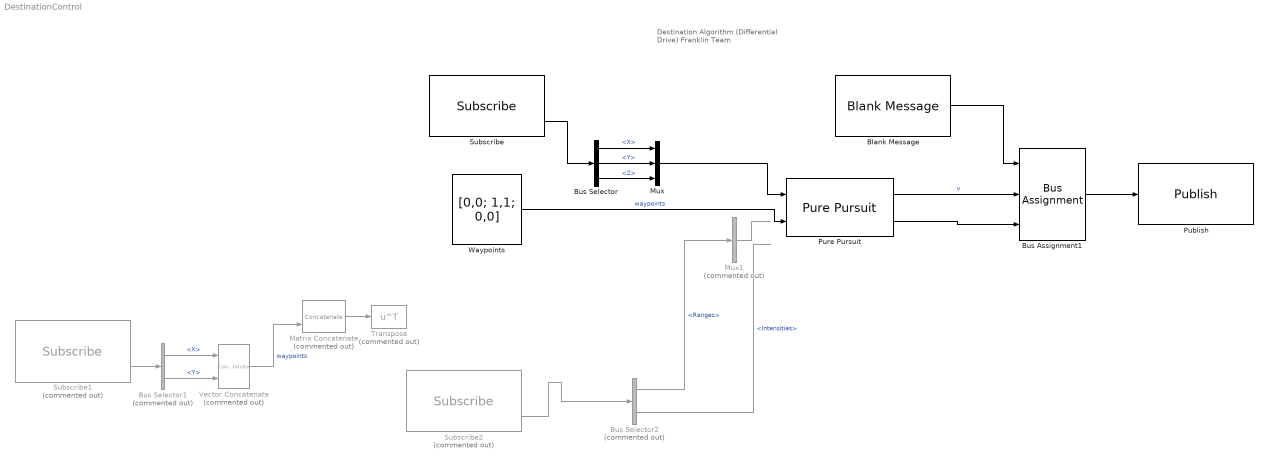
//
// Academic License - for use in teaching, academic research, and meeting
// course requirements at degree granting institutions only.  Not for
// government, commercial, or other organizational use.
//
// File: DestinationControl.cpp
//
// Code generated for Simulink model 'DestinationControl'.
//
// Model version                  : 1.4
// Simulink Coder version         : 9.3 (R2020a) 18-Nov-2019
// C/C++ source code generated on : Thu May  7 15:42:08 2020
//
// Target selection: ert.tlc
// Embedded hardware selection: Generic->Unspecified (assume 32-bit Generic)
// Code generation objectives: Unspecified
// Validation result: Not run
//
#include "DestinationControl.h"
#include "DestinationControl_private.h"

// Block signals (default storage)
B_DestinationControl_T DestinationControl_B;

// Block states (default storage)
DW_DestinationControl_T DestinationControl_DW;

// Real-time model
RT_MODEL_DestinationControl_T DestinationControl_M_ =
  RT_MODEL_DestinationControl_T();
RT_MODEL_DestinationControl_T *const DestinationControl_M =
  &DestinationControl_M_;

// Forward declaration for local functions
static real_T DestinationControl_norm(const real_T x[2]);
static void DestinationC_closestPointOnLine(const real_T pt1[2], const real_T
  pt2[2], const real_T refPt[2], real_T closestPoint[2], real_T *distance);
static void De_PurePursuitBase_stepInternal(nav_slalgs_internal_PurePursu_T *obj,
  const real_T currentPose[3], const real_T wayptsIn[6], real_T *v, real_T *w,
  real_T lookaheadPoint[2], real_T *targetDir);
static void matlabCodegenHandle_matlabCod_f(ros_slros_internal_block_Subs_T *obj);
static void matlabCodegenHandle_matlabCodeg(ros_slros_internal_block_Publ_T *obj);
static real_T DestinationControl_norm(const real_T x[2])
{
  real_T y;
  real_T scale;
  real_T absxk;
  real_T t;
  scale = 3.3121686421112381E-170;
  absxk = fabs(x[0]);
  if (absxk > 3.3121686421112381E-170) {
    y = 1.0;
    scale = absxk;
  } else {
    t = absxk / 3.3121686421112381E-170;
    y = t * t;
  }

  absxk = fabs(x[1]);
  if (absxk > scale) {
    t = scale / absxk;
    y = y * t * t + 1.0;
    scale = absxk;
  } else {
    t = absxk / scale;
    y += t * t;
  }

  return scale * sqrt(y);
}

static void DestinationC_closestPointOnLine(const real_T pt1[2], const real_T
  pt2[2], const real_T refPt[2], real_T closestPoint[2], real_T *distance)
{
  boolean_T p;
  boolean_T p_0;
  int32_T b_k;
  boolean_T exitg1;
  p = false;
  p_0 = true;
  b_k = 0;
  exitg1 = false;
  while ((!exitg1) && (b_k < 2)) {
    if (!(pt1[b_k] == pt2[b_k])) {
      p_0 = false;
      exitg1 = true;
    } else {
      b_k++;
    }
  }

  if (p_0) {
    p = true;
  }

  if (p) {
    closestPoint[0] = pt1[0];
    DestinationControl_B.refPt[0] = refPt[0] - pt1[0];
    closestPoint[1] = pt1[1];
    DestinationControl_B.refPt[1] = refPt[1] - pt1[1];
    *distance = DestinationControl_norm(DestinationControl_B.refPt);
  } else {
    DestinationControl_B.alpha = pt2[0] - pt1[0];
    DestinationControl_B.v12 = (pt2[0] - refPt[0]) * DestinationControl_B.alpha;
    DestinationControl_B.v12_k = DestinationControl_B.alpha *
      DestinationControl_B.alpha;
    DestinationControl_B.alpha = pt2[1] - pt1[1];
    DestinationControl_B.v12 += (pt2[1] - refPt[1]) * DestinationControl_B.alpha;
    DestinationControl_B.v12_k += DestinationControl_B.alpha *
      DestinationControl_B.alpha;
    DestinationControl_B.alpha = DestinationControl_B.v12 /
      DestinationControl_B.v12_k;
    p = (DestinationControl_B.alpha > 1.0);
    p_0 = (DestinationControl_B.alpha < 0.0);
    if (p) {
      DestinationControl_B.v12 = pt1[0];
    } else if (p_0) {
      DestinationControl_B.v12 = pt2[0];
    } else {
      DestinationControl_B.v12 = (1.0 - DestinationControl_B.alpha) * pt2[0] +
        DestinationControl_B.alpha * pt1[0];
    }

    DestinationControl_B.refPt[0] = refPt[0] - DestinationControl_B.v12;
    closestPoint[0] = DestinationControl_B.v12;
    if (p) {
      DestinationControl_B.v12 = pt1[1];
    } else if (p_0) {
      DestinationControl_B.v12 = pt2[1];
    } else {
      DestinationControl_B.v12 = (1.0 - DestinationControl_B.alpha) * pt2[1] +
        DestinationControl_B.alpha * pt1[1];
    }

    DestinationControl_B.refPt[1] = refPt[1] - DestinationControl_B.v12;
    closestPoint[1] = DestinationControl_B.v12;
    *distance = DestinationControl_norm(DestinationControl_B.refPt);
  }
}

real_T rt_atan2d_snf(real_T u0, real_T u1)
{
  real_T y;
  int32_T u0_0;
  int32_T u1_0;
  if (rtIsNaN(u0) || rtIsNaN(u1)) {
    y = (rtNaN);
  } else if (rtIsInf(u0) && rtIsInf(u1)) {
    if (u0 > 0.0) {
      u0_0 = 1;
    } else {
      u0_0 = -1;
    }

    if (u1 > 0.0) {
      u1_0 = 1;
    } else {
      u1_0 = -1;
    }

    y = atan2(static_cast<real_T>(u0_0), static_cast<real_T>(u1_0));
  } else if (u1 == 0.0) {
    if (u0 > 0.0) {
      y = RT_PI / 2.0;
    } else if (u0 < 0.0) {
      y = -(RT_PI / 2.0);
    } else {
      y = 0.0;
    }
  } else {
    y = atan2(u0, u1);
  }

  return y;
}

static void De_PurePursuitBase_stepInternal(nav_slalgs_internal_PurePursu_T *obj,
  const real_T currentPose[3], const real_T wayptsIn[6], real_T *v, real_T *w,
  real_T lookaheadPoint[2], real_T *targetDir)
{
  boolean_T b[6];
  int32_T trueCount;
  int32_T i;
  int32_T partialTrueCount;
  boolean_T searchFlag;
  int32_T i_tmp;
  int32_T i_tmp_0;
  boolean_T exitg1;
  for (i = 0; i < 6; i++) {
    b[i] = !rtIsNaN(wayptsIn[i]);
  }

  trueCount = 0;
  partialTrueCount = 0;
  for (i = 0; i < 3; i++) {
    if (b[i] && b[i + 3]) {
      trueCount++;
      DestinationControl_B.f_data[partialTrueCount] = i + 1;
      partialTrueCount++;
    }
  }

  for (i = 0; i < trueCount; i++) {
    DestinationControl_B.waypoints_data[i] =
      wayptsIn[DestinationControl_B.f_data[i] - 1];
    DestinationControl_B.waypoints_data[i + trueCount] =
      wayptsIn[DestinationControl_B.f_data[i] + 2];
  }

  if (trueCount == 0) {
    *v = 0.0;
    *w = 0.0;
    *targetDir = 0.0;
    lookaheadPoint[0] = currentPose[0];
    lookaheadPoint[1] = currentPose[1];
  } else {
    searchFlag = false;
    if (obj->ProjectionLineIndex == 0.0) {
      searchFlag = true;
      obj->ProjectionPoint[0] = DestinationControl_B.waypoints_data[0];
      obj->ProjectionPoint[1] = DestinationControl_B.waypoints_data[trueCount];
      obj->ProjectionLineIndex = 1.0;
    }

    if (trueCount == 1) {
      obj->ProjectionPoint[0] = DestinationControl_B.waypoints_data[0];
      obj->ProjectionPoint[1] = DestinationControl_B.waypoints_data[trueCount];
      DestinationControl_B.lookaheadStartPt[0] =
        DestinationControl_B.waypoints_data[0];
      DestinationControl_B.lookaheadStartPt[1] =
        DestinationControl_B.waypoints_data[trueCount];
    } else {
      i = static_cast<int32_T>(obj->ProjectionLineIndex + 1.0);
      DestinationControl_B.waypoints[0] = DestinationControl_B.waypoints_data[i
        - 1];
      DestinationControl_B.waypoints[1] = DestinationControl_B.waypoints_data[(i
        + trueCount) - 1];
      for (i = 0; i < 2; i++) {
        DestinationControl_B.lookaheadStartPt[i] = obj->ProjectionPoint[i];
      }

      DestinationC_closestPointOnLine(DestinationControl_B.lookaheadStartPt,
        DestinationControl_B.waypoints, &currentPose[0], obj->ProjectionPoint,
        &DestinationControl_B.minDistance);
      i = static_cast<int32_T>(obj->ProjectionLineIndex + 1.0);
      DestinationControl_B.lookaheadStartPt[0] = obj->ProjectionPoint[0] -
        DestinationControl_B.waypoints_data[i - 1];
      DestinationControl_B.lookaheadStartPt[1] = obj->ProjectionPoint[1] -
        DestinationControl_B.waypoints_data[(i + trueCount) - 1];
      DestinationControl_B.dist = DestinationControl_norm
        (DestinationControl_B.lookaheadStartPt);
      DestinationControl_B.lookaheadEndPt_idx_1 = obj->ProjectionLineIndex + 1.0;
      i = static_cast<int32_T>((1.0 - (obj->ProjectionLineIndex + 1.0)) + (
        static_cast<real_T>(trueCount) - 1.0)) - 1;
      partialTrueCount = 0;
      exitg1 = false;
      while ((!exitg1) && (partialTrueCount <= i)) {
        DestinationControl_B.overshootDist =
          DestinationControl_B.lookaheadEndPt_idx_1 + static_cast<real_T>
          (partialTrueCount);
        if ((!searchFlag) && (DestinationControl_B.dist > obj->LookaheadDistance))
        {
          exitg1 = true;
        } else {
          i_tmp = static_cast<int32_T>(DestinationControl_B.overshootDist);
          i_tmp_0 = static_cast<int32_T>(DestinationControl_B.overshootDist +
            1.0);
          DestinationControl_B.waypoints[0] =
            DestinationControl_B.waypoints_data[i_tmp - 1] -
            DestinationControl_B.waypoints_data[i_tmp_0 - 1];
          DestinationControl_B.waypoints_m[0] =
            DestinationControl_B.waypoints_data[i_tmp - 1];
          DestinationControl_B.waypoints_c[0] =
            DestinationControl_B.waypoints_data[i_tmp_0 - 1];
          DestinationControl_B.waypoints[1] =
            DestinationControl_B.waypoints_data[(i_tmp + trueCount) - 1] -
            DestinationControl_B.waypoints_data[(i_tmp_0 + trueCount) - 1];
          DestinationControl_B.waypoints_m[1] =
            DestinationControl_B.waypoints_data[(i_tmp + trueCount) - 1];
          DestinationControl_B.waypoints_c[1] =
            DestinationControl_B.waypoints_data[(i_tmp_0 + trueCount) - 1];
          DestinationControl_B.dist += DestinationControl_norm
            (DestinationControl_B.waypoints);
          DestinationC_closestPointOnLine(DestinationControl_B.waypoints_m,
            DestinationControl_B.waypoints_c, &currentPose[0],
            DestinationControl_B.lookaheadStartPt,
            &DestinationControl_B.lookaheadIdx);
          if (DestinationControl_B.lookaheadIdx <
              DestinationControl_B.minDistance) {
            DestinationControl_B.minDistance = DestinationControl_B.lookaheadIdx;
            obj->ProjectionPoint[0] = DestinationControl_B.lookaheadStartPt[0];
            obj->ProjectionPoint[1] = DestinationControl_B.lookaheadStartPt[1];
            obj->ProjectionLineIndex = DestinationControl_B.overshootDist;
          }

          partialTrueCount++;
        }
      }

      i = static_cast<int32_T>(obj->ProjectionLineIndex + 1.0);
      DestinationControl_B.lookaheadStartPt[0] = obj->ProjectionPoint[0] -
        DestinationControl_B.waypoints_data[i - 1];
      DestinationControl_B.lookaheadStartPt[1] = obj->ProjectionPoint[1] -
        DestinationControl_B.waypoints_data[(i + trueCount) - 1];
      DestinationControl_B.dist = DestinationControl_norm
        (DestinationControl_B.lookaheadStartPt);
      i = static_cast<int32_T>(obj->ProjectionLineIndex + 1.0);
      DestinationControl_B.lookaheadStartPt[0] = obj->ProjectionPoint[0];
      DestinationControl_B.minDistance = DestinationControl_B.waypoints_data[i -
        1];
      DestinationControl_B.lookaheadStartPt[1] = obj->ProjectionPoint[1];
      DestinationControl_B.lookaheadEndPt_idx_1 =
        DestinationControl_B.waypoints_data[(i + trueCount) - 1];
      DestinationControl_B.overshootDist = DestinationControl_B.dist -
        obj->LookaheadDistance;
      DestinationControl_B.lookaheadIdx = obj->ProjectionLineIndex;
      while ((DestinationControl_B.overshootDist < 0.0) &&
             (DestinationControl_B.lookaheadIdx < static_cast<real_T>(trueCount)
              - 1.0)) {
        DestinationControl_B.lookaheadIdx++;
        i = static_cast<int32_T>(DestinationControl_B.lookaheadIdx);
        partialTrueCount = static_cast<int32_T>
          (DestinationControl_B.lookaheadIdx + 1.0);
        DestinationControl_B.lookaheadStartPt[0] =
          DestinationControl_B.waypoints_data[i - 1];
        DestinationControl_B.lookaheadEndPt_idx_1 =
          DestinationControl_B.waypoints_data[partialTrueCount - 1];
        DestinationControl_B.waypoints[0] =
          DestinationControl_B.waypoints_data[i - 1] -
          DestinationControl_B.lookaheadEndPt_idx_1;
        DestinationControl_B.minDistance =
          DestinationControl_B.lookaheadEndPt_idx_1;
        DestinationControl_B.lookaheadStartPt[1] =
          DestinationControl_B.waypoints_data[(i + trueCount) - 1];
        DestinationControl_B.lookaheadEndPt_idx_1 =
          DestinationControl_B.waypoints_data[(partialTrueCount + trueCount) - 1];
        DestinationControl_B.waypoints[1] = DestinationControl_B.waypoints_data
          [(i + trueCount) - 1] - DestinationControl_B.lookaheadEndPt_idx_1;
        DestinationControl_B.dist += DestinationControl_norm
          (DestinationControl_B.waypoints);
        DestinationControl_B.overshootDist = DestinationControl_B.dist -
          obj->LookaheadDistance;
      }

      DestinationControl_B.waypoints[0] = DestinationControl_B.lookaheadStartPt
        [0] - DestinationControl_B.minDistance;
      DestinationControl_B.waypoints[1] = DestinationControl_B.lookaheadStartPt
        [1] - DestinationControl_B.lookaheadEndPt_idx_1;
      DestinationControl_B.dist = DestinationControl_B.overshootDist /
        DestinationControl_norm(DestinationControl_B.waypoints);
      if (DestinationControl_B.dist > 0.0) {
        DestinationControl_B.lookaheadStartPt[0] = (1.0 -
          DestinationControl_B.dist) * DestinationControl_B.minDistance +
          DestinationControl_B.dist * DestinationControl_B.lookaheadStartPt[0];
        DestinationControl_B.lookaheadStartPt[1] = (1.0 -
          DestinationControl_B.dist) * DestinationControl_B.lookaheadEndPt_idx_1
          + DestinationControl_B.dist * DestinationControl_B.lookaheadStartPt[1];
      } else {
        DestinationControl_B.lookaheadStartPt[0] =
          DestinationControl_B.minDistance;
        DestinationControl_B.lookaheadStartPt[1] =
          DestinationControl_B.lookaheadEndPt_idx_1;
      }
    }

    obj->LookaheadPoint[0] = DestinationControl_B.lookaheadStartPt[0];
    obj->LookaheadPoint[1] = DestinationControl_B.lookaheadStartPt[1];
    *targetDir = rt_atan2d_snf(obj->LookaheadPoint[1] - currentPose[1],
      obj->LookaheadPoint[0] - currentPose[0]) - currentPose[2];
    if (fabs(*targetDir) > 3.1415926535897931) {
      if (rtIsNaN(*targetDir + 3.1415926535897931) || rtIsInf(*targetDir +
           3.1415926535897931)) {
        DestinationControl_B.dist = (rtNaN);
      } else if (*targetDir + 3.1415926535897931 == 0.0) {
        DestinationControl_B.dist = 0.0;
      } else {
        DestinationControl_B.dist = fmod(*targetDir + 3.1415926535897931,
          6.2831853071795862);
        searchFlag = (DestinationControl_B.dist == 0.0);
        if (!searchFlag) {
          DestinationControl_B.minDistance = fabs((*targetDir +
            3.1415926535897931) / 6.2831853071795862);
          searchFlag = !(fabs(DestinationControl_B.minDistance - floor
                              (DestinationControl_B.minDistance + 0.5)) >
                         2.2204460492503131E-16 *
                         DestinationControl_B.minDistance);
        }

        if (searchFlag) {
          DestinationControl_B.dist = 0.0;
        } else {
          if (*targetDir + 3.1415926535897931 < 0.0) {
            DestinationControl_B.dist += 6.2831853071795862;
          }
        }
      }

      DestinationControl_B.b = DestinationControl_B.dist;
      if ((DestinationControl_B.dist == 0.0) && (*targetDir + 3.1415926535897931
           > 0.0)) {
        DestinationControl_B.b = 6.2831853071795862;
      }

      *targetDir = DestinationControl_B.b - 3.1415926535897931;
    }

    *w = 2.0 * sin(*targetDir) / obj->LookaheadDistance;
    if (fabs(fabs(*targetDir) - 3.1415926535897931) < 1.4901161193847656E-8) {
      if (*w < 0.0) {
        *w = -1.0;
      } else if (*w > 0.0) {
        *w = 1.0;
      } else if (*w == 0.0) {
        *w = 0.0;
      } else {
        *w = (rtNaN);
      }
    }

    if (fabs(*w) > obj->MaxAngularVelocity) {
      if (*w < 0.0) {
        *w = -1.0;
      } else if (*w > 0.0) {
        *w = 1.0;
      } else if (*w == 0.0) {
        *w = 0.0;
      } else {
        *w = (rtNaN);
      }

      *w *= obj->MaxAngularVelocity;
    }

    *v = obj->DesiredLinearVelocity;
    lookaheadPoint[0] = obj->LookaheadPoint[0];
    lookaheadPoint[1] = obj->LookaheadPoint[1];
    obj->LastPose[0] = currentPose[0];
    obj->LastPose[1] = currentPose[1];
    obj->LastPose[2] = currentPose[2];
    if (rtIsNaN(*targetDir)) {
      *targetDir = 0.0;
    }
  }
}

static void matlabCodegenHandle_matlabCod_f(ros_slros_internal_block_Subs_T *obj)
{
  if (!obj->matlabCodegenIsDeleted) {
    obj->matlabCodegenIsDeleted = true;
  }
}

static void matlabCodegenHandle_matlabCodeg(ros_slros_internal_block_Publ_T *obj)
{
  if (!obj->matlabCodegenIsDeleted) {
    obj->matlabCodegenIsDeleted = true;
  }
}

// Model step function
void DestinationControl_step(void)
{
  boolean_T p;
  int32_T b_k;
  boolean_T b_varargout_1;
  boolean_T exitg1;

  // Outputs for Atomic SubSystem: '<Root>/Subscribe'
  // MATLABSystem: '<S3>/SourceBlock' incorporates:
  //   Inport: '<S4>/In1'

  b_varargout_1 = Sub_DestinationControl_7.getLatestMessage
    (&DestinationControl_B.b_varargout_2);

  // Outputs for Enabled SubSystem: '<S3>/Enabled Subsystem' incorporates:
  //   EnablePort: '<S4>/Enable'

  if (b_varargout_1) {
    DestinationControl_B.In1 = DestinationControl_B.b_varargout_2;
  }

  // End of MATLABSystem: '<S3>/SourceBlock'
  // End of Outputs for SubSystem: '<S3>/Enabled Subsystem'
  // End of Outputs for SubSystem: '<Root>/Subscribe'

  // MATLABSystem: '<Root>/Pure Pursuit' incorporates:
  //   Constant: '<Root>/Waypoints'
  //   SignalConversion generated from: '<Root>/Pure Pursuit'

  if (DestinationControl_DW.obj.DesiredLinearVelocity !=
      DestinationControl_P.PurePursuit_DesiredLinearVeloci) {
    DestinationControl_DW.obj.DesiredLinearVelocity =
      DestinationControl_P.PurePursuit_DesiredLinearVeloci;
  }

  if (DestinationControl_DW.obj.MaxAngularVelocity !=
      DestinationControl_P.PurePursuit_MaxAngularVelocity) {
    DestinationControl_DW.obj.MaxAngularVelocity =
      DestinationControl_P.PurePursuit_MaxAngularVelocity;
  }

  if (DestinationControl_DW.obj.LookaheadDistance !=
      DestinationControl_P.PurePursuit_LookaheadDistance) {
    DestinationControl_DW.obj.LookaheadDistance =
      DestinationControl_P.PurePursuit_LookaheadDistance;
  }

  b_varargout_1 = false;
  p = true;
  b_k = 0;
  exitg1 = false;
  while ((!exitg1) && (b_k < 6)) {
    if ((DestinationControl_DW.obj.WaypointsInternal[b_k] ==
         DestinationControl_P.Waypoints_Value[b_k]) || (rtIsNaN
         (DestinationControl_DW.obj.WaypointsInternal[b_k]) && rtIsNaN
         (DestinationControl_P.Waypoints_Value[b_k]))) {
      b_k++;
    } else {
      p = false;
      exitg1 = true;
    }
  }

  if (p) {
    b_varargout_1 = true;
  }

  if (!b_varargout_1) {
    for (b_k = 0; b_k < 6; b_k++) {
      DestinationControl_DW.obj.WaypointsInternal[b_k] =
        DestinationControl_P.Waypoints_Value[b_k];
    }

    DestinationControl_DW.obj.ProjectionLineIndex = 0.0;
  }

  DestinationControl_B.dv[0] = DestinationControl_B.In1.Pose.Pose.Position.X;
  DestinationControl_B.dv[1] = DestinationControl_B.In1.Pose.Pose.Position.Y;
  DestinationControl_B.dv[2] = DestinationControl_B.In1.Pose.Pose.Orientation.Z;
  De_PurePursuitBase_stepInternal(&DestinationControl_DW.obj,
    DestinationControl_B.dv, DestinationControl_P.Waypoints_Value,
    &DestinationControl_B.v, &DestinationControl_B.w,
    DestinationControl_B.unusedU0, &DestinationControl_B.targetDir);

  // BusAssignment: '<Root>/Bus Assignment1' incorporates:
  //   Constant: '<S1>/Constant'
  //   MATLABSystem: '<Root>/Pure Pursuit'

  DestinationControl_B.BusAssignment1 = DestinationControl_P.Constant_Value_d;
  DestinationControl_B.BusAssignment1.Linear.X = DestinationControl_B.v;
  DestinationControl_B.BusAssignment1.Angular.Z = DestinationControl_B.w;

  // Outputs for Atomic SubSystem: '<Root>/Publish'
  // MATLABSystem: '<S2>/SinkBlock'
  Pub_DestinationControl_5.publish(&DestinationControl_B.BusAssignment1);

  // End of Outputs for SubSystem: '<Root>/Publish'
}
